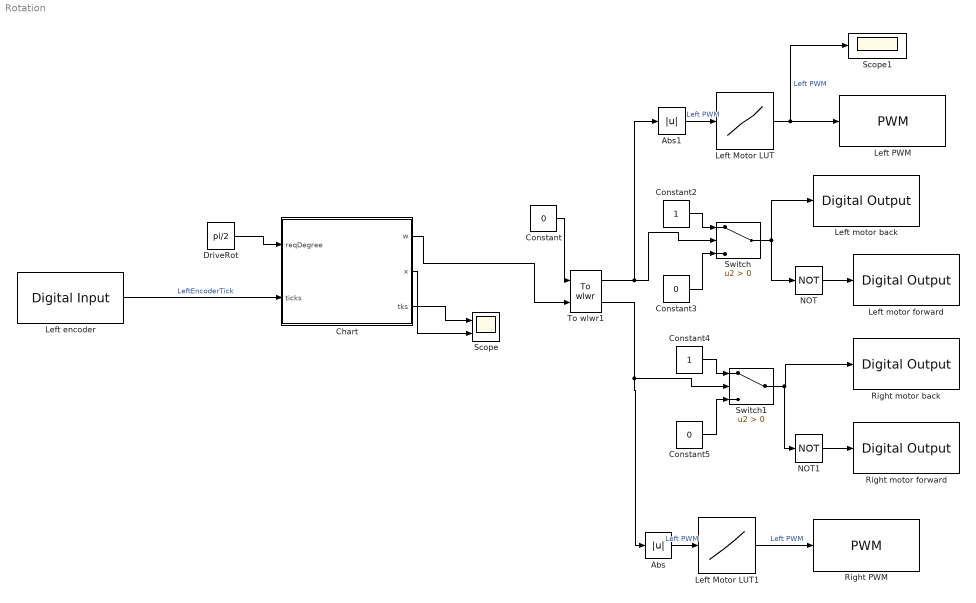
== stateflow chart Rotation/Chart ==
  state Default
    entry:
    ticks;
    i;
    w=1.5;
    degrees1tick=asin((pi*0.031)/(10*0.068));
    reqDegree;
    reqTicks=reqDegree/degrees1tick;
    Req = 50;
  state Turn
    entry:
    w=1.5;
    i = i+1;
    x=i;
    tks = degrees1tick
  state End
    entry:
    w=0;
  (default) -> Default
  Turn -> Default
  Default -> Turn [order 1] : [i<reqTicks && ticks ==0]
  Default -> End [order 2] : [i ==reqTicks | i > reqTicks]
  data: reqDegree input; ticks input; degrees1tick local; w output; reqTicks local; i local =0; x output; Req local; tks output

/*
 * Academic License - for use in teaching, academic research, and meeting
 * course requirements at degree granting institutions only.  Not for
 * government, commercial, or other organizational use.
 *
 * File: Rotation.c
 *
 * Code generated for Simulink model 'Rotation'.
 *
 * Model version                  : 1.8
 * Simulink Coder version         : 9.9 (R2023a) 19-Nov-2022
 * C/C++ source code generated on : Thu Oct  5 16:11:46 2023
 *
 * Target selection: ert.tlc
 * Embedded hardware selection: ARM Compatible->ARM Cortex
 * Code generation objectives: Unspecified
 * Validation result: Not run
 */

#include "Rotation.h"
#include "rtwtypes.h"
#include <math.h>
#include "Rotation_private.h"
#include "Rotation_types.h"

/* Named constants for Chart: '<Root>/Chart' */
#define Rotation_IN_Default            (1U)
#define Rotation_IN_End                (2U)
#define Rotation_IN_Turn               (3U)

/* Block signals (default storage) */
B_Rotation_T Rotation_B;

/* Block states (default storage) */
DW_Rotation_T Rotation_DW;

/* Real-time model */
static RT_MODEL_Rotation_T Rotation_M_;
RT_MODEL_Rotation_T *const Rotation_M = &Rotation_M_;
static void rate_scheduler(void);
uint32_T plook_u32d_binckan(real_T u, const real_T bp[], uint32_T maxIndex)
{
  uint32_T bpIndex;

  /* Prelookup - Index only
     Index Search method: 'binary'
     Interpolation method: 'Use nearest'
     Extrapolation method: 'Clip'
     Use previous index: 'off'
     Use last breakpoint for index at or above upper limit: 'on'
     Remove protection against out-of-range input in generated code: 'off'
   */
  if (u <= bp[0U]) {
    bpIndex = 0U;
  } else if (u < bp[maxIndex]) {
    bpIndex = binsearch_u32d(u, bp, maxIndex >> 1U, maxIndex);
    if ((bpIndex < maxIndex) && (bp[bpIndex + 1U] - u <= u - bp[bpIndex])) {
      bpIndex++;
    }
  } else {
    bpIndex = maxIndex;
  }

  return bpIndex;
}

uint32_T binsearch_u32d(real_T u, const real_T bp[], uint32_T startIndex,
  uint32_T maxIndex)
{
  uint32_T bpIdx;
  uint32_T bpIndex;
  uint32_T iRght;

  /* Binary Search */
  bpIdx = startIndex;
  bpIndex = 0U;
  iRght = maxIndex;
  while (iRght - bpIndex > 1U) {
    if (u < bp[bpIdx]) {
      iRght = bpIdx;
    } else {
      bpIndex = bpIdx;
    }

    bpIdx = (iRght + bpIndex) >> 1U;
  }

  return bpIndex;
}

/*
 *         This function updates active task flag for each subrate.
 *         The function is called at model base rate, hence the
 *         generated code self-manages all its subrates.
 */
static void rate_scheduler(void)
{
  /* Compute which subrates run during the next base time step.  Subrates
   * are an integer multiple of the base rate counter.  Therefore, the subtask
   * counter is reset when it reaches its limit (zero means run).
   */
  (Rotation_M->Timing.TaskCounters.TID[1])++;
  if ((Rotation_M->Timing.TaskCounters.TID[1]) > 9) {/* Sample time: [0.1s, 0.0s] */
    Rotation_M->Timing.TaskCounters.TID[1] = 0;
  }
}

real_T rt_roundd_snf(real_T u)
{
  real_T y;
  if (fabs(u) < 4.503599627370496E+15) {
    if (u >= 0.5) {
      y = floor(u + 0.5);
    } else if (u > -0.5) {
      y = u * 0.0;
    } else {
      y = ceil(u - 0.5);
    }
  } else {
    y = u;
  }

  return y;
}

/* Model step function */
void Rotation_step(void)
{
  codertarget_arduinobase_inter_T *obj;
  real_T rtb_vtow_idx_0;
  real_T rtb_w;
  real_T y;
  uint8_T tmp;
  if (Rotation_M->Timing.TaskCounters.TID[1] == 0) {
    /* Constant: '<Root>/DriveRot' */
    Rotation_B.DriveRot = Rotation_P.DriveRot_Value;

    /* MATLABSystem: '<Root>/Left encoder' */
    if (Rotation_DW.obj.SampleTime != Rotation_P.Leftencoder_SampleTime) {
      Rotation_DW.obj.SampleTime = Rotation_P.Leftencoder_SampleTime;
    }

    /* MATLABSystem: '<Root>/Left encoder' */
    Rotation_B.LeftEncoderTick = readDigitalPin(2);

    /* Chart: '<Root>/Chart' */
    if (Rotation_DW.is_active_c3_Rotation == 0U) {
      Rotation_DW.is_active_c3_Rotation = 1U;
      Rotation_DW.is_c3_Rotation = Rotation_IN_Default;
      rtb_w = 1.5;
      Rotation_DW.degrees1tick = 0.14371385763665342;
      Rotation_DW.reqTicks = Rotation_B.DriveRot / Rotation_DW.degrees1tick;
    } else {
      switch (Rotation_DW.is_c3_Rotation) {
       case Rotation_IN_Default:
        rtb_w = 1.5;
        if ((Rotation_DW.i < Rotation_DW.reqTicks) &&
            (!Rotation_B.LeftEncoderTick)) {
          Rotation_DW.is_c3_Rotation = Rotation_IN_Turn;
          Rotation_DW.i++;
          Rotation_B.x = Rotation_DW.i;
          Rotation_B.tks = Rotation_DW.degrees1tick;
        } else if ((Rotation_DW.i == Rotation_DW.reqTicks) || (Rotation_DW.i >
                    Rotation_DW.reqTicks)) {
          Rotation_DW.is_c3_Rotation = Rotation_IN_End;
          rtb_w = 0.0;
        }
        break;

       case Rotation_IN_End:
        rtb_w = 0.0;
        break;

       default:
        /* case IN_Turn: */
        Rotation_DW.is_c3_Rotation = Rotation_IN_Default;
        rtb_w = 1.5;
        Rotation_DW.degrees1tick = 0.14371385763665342;
        Rotation_DW.reqTicks = Rotation_B.DriveRot / Rotation_DW.degrees1tick;
        break;
      }
    }

    /* End of Chart: '<Root>/Chart' */

    /* Gain: '<S2>/vtow' incorporates:
     *  Constant: '<Root>/Constant'
     *  Gain: '<S2>/change parameters'
     *  SignalConversion generated from: '<S2>/change parameters'
     */
    y = 1.0 / Rotation_P.wheelR;
    rtb_vtow_idx_0 = (Rotation_P.changeparameters_Gain[0] *
                      Rotation_P.Constant_Value +
                      Rotation_P.changeparameters_Gain[2] * rtb_w) * y;
    rtb_w = (Rotation_P.changeparameters_Gain[1] * Rotation_P.Constant_Value +
             Rotation_P.changeparameters_Gain[3] * rtb_w) * y;

    /* Lookup_n-D: '<Root>/Left Motor LUT' incorporates:
     *  Abs: '<Root>/Abs1'
     */
    Rotation_B.LeftPWM = Rotation_P.InputPWM[plook_u32d_binckan(fabs
      (rtb_vtow_idx_0), Rotation_P.WheelSpeed, 172U)];

    /* MATLABSystem: '<Root>/Left PWM' */
    obj = &Rotation_DW.obj_if;
    obj->PWMDriverObj.MW_PWM_HANDLE = MW_PWM_GetHandle(16U);
    if (Rotation_B.LeftPWM <= 255.0) {
      y = Rotation_B.LeftPWM;
    } else {
      y = 255.0;
    }

    if (!(y >= 0.0)) {
      y = 0.0;
    }

    MW_PWM_SetDutyCycle(Rotation_DW.obj_if.PWMDriverObj.MW_PWM_HANDLE, y);

    /* End of MATLABSystem: '<Root>/Left PWM' */
    /* Switch: '<Root>/Switch' incorporates:
     *  Constant: '<Root>/Constant2'
     *  Constant: '<Root>/Constant3'
     */
    if (rtb_vtow_idx_0 > Rotation_P.Switch_Threshold) {
      rtb_vtow_idx_0 = Rotation_P.Constant2_Value;
    } else {
      rtb_vtow_idx_0 = Rotation_P.Constant3_Value;
    }

    /* End of Switch: '<Root>/Switch' */

    /* MATLABSystem: '<Root>/Left motor back' */
    y = rt_roundd_snf(rtb_vtow_idx_0);
    if (y < 256.0) {
      if (y >= 0.0) {
        tmp = (uint8_T)y;
      } else {
        tmp = 0U;
      }
    } else {
      tmp = MAX_uint8_T;
    }

    writeDigitalPin(5, tmp);

    /* End of MATLABSystem: '<Root>/Left motor back' */

    /* MATLABSystem: '<Root>/Left motor forward' incorporates:
     *  Logic: '<Root>/NOT'
     */
    writeDigitalPin(4, (uint8_T)!(rtb_vtow_idx_0 != 0.0));

    /* MATLABSystem: '<Root>/Right PWM' */
    obj = &Rotation_DW.obj_i;
    obj->PWMDriverObj.MW_PWM_HANDLE = MW_PWM_GetHandle(17U);

    /* Lookup_n-D: '<Root>/Left Motor LUT1' incorporates:
     *  Abs: '<Root>/Abs'
     */
    y = Rotation_P.InputPWM[plook_u32d_binckan(fabs(rtb_w),
      Rotation_P.WheelSpeed, 172U)];

    /* MATLABSystem: '<Root>/Right PWM' */
    if (!(y <= 255.0)) {
      y = 255.0;
    }

    if (!(y >= 0.0)) {
      y = 0.0;
    }

    MW_PWM_SetDutyCycle(Rotation_DW.obj_i.PWMDriverObj.MW_PWM_HANDLE, y);

    /* Switch: '<Root>/Switch1' incorporates:
     *  Constant: '<Root>/Constant4'
     *  Constant: '<Root>/Constant5'
     */
    if (rtb_w > Rotation_P.Switch1_Threshold) {
      rtb_w = Rotation_P.Constant4_Value;
    } else {
      rtb_w = Rotation_P.Constant5_Value;
    }

    /* End of Switch: '<Root>/Switch1' */

    /* MATLABSystem: '<Root>/Right motor back' */
    y = rt_roundd_snf(rtb_w);
    if (y < 256.0) {
      if (y >= 0.0) {
        tmp = (uint8_T)y;
      } else {
        tmp = 0U;
      }
    } else {
      tmp = MAX_uint8_T;
    }

    writeDigitalPin(7, tmp);

    /* End of MATLABSystem: '<Root>/Right motor back' */

    /* MATLABSystem: '<Root>/Right motor forward' incorporates:
     *  Logic: '<Root>/NOT1'
     */
    writeDigitalPin(6, (uint8_T)!(rtb_w != 0.0));
  }

  {                                    /* Sample time: [0.01s, 0.0s] */
    extmodeErrorCode_T errorCode = EXTMODE_SUCCESS;
    extmodeSimulationTime_T currentTime = (extmodeSimulationTime_T)
      Rotation_M->Timing.taskTime0;

    /* Trigger External Mode event */
    errorCode = extmodeEvent(0,currentTime);
    if (errorCode != EXTMODE_SUCCESS) {
      /* Code to handle External Mode event errors
         may be added here */
    }
  }

  if (Rotation_M->Timing.TaskCounters.TID[1] == 0) {/* Sample time: [0.1s, 0.0s] */
    extmodeErrorCode_T errorCode = EXTMODE_SUCCESS;
    extmodeSimulationTime_T currentTime = (extmodeSimulationTime_T)
      ((Rotation_M->Timing.clockTick1) * 0.1);

    /* Trigger External Mode event */
    errorCode = extmodeEvent(1,currentTime);
    if (errorCode != EXTMODE_SUCCESS) {
      /* Code to handle External Mode event errors
         may be added here */
    }
  }

  /* Update absolute time for base rate */
  /* The "clockTick0" counts the number of times the code of this task has
   * been executed. The absolute time is the multiplication of "clockTick0"
   * and "Timing.stepSize0". Size of "clockTick0" ensures timer will not
   * overflow during the application lifespan selected.
   */
  Rotation_M->Timing.taskTime0 =
    ((time_T)(++Rotation_M->Timing.clockTick0)) * Rotation_M->Timing.stepSize0;
  if (Rotation_M->Timing.TaskCounters.TID[1] == 0) {
    /* Update absolute timer for sample time: [0.1s, 0.0s] */
    /* The "clockTick1" counts the number of times the code of this task has
     * been executed. The resolution of this integer timer is 0.1, which is the step size
     * of the task. Size of "clockTick1" ensures timer will not overflow during the
     * application lifespan selected.
     */
    Rotation_M->Timing.clockTick1++;
  }

  rate_scheduler();
}
